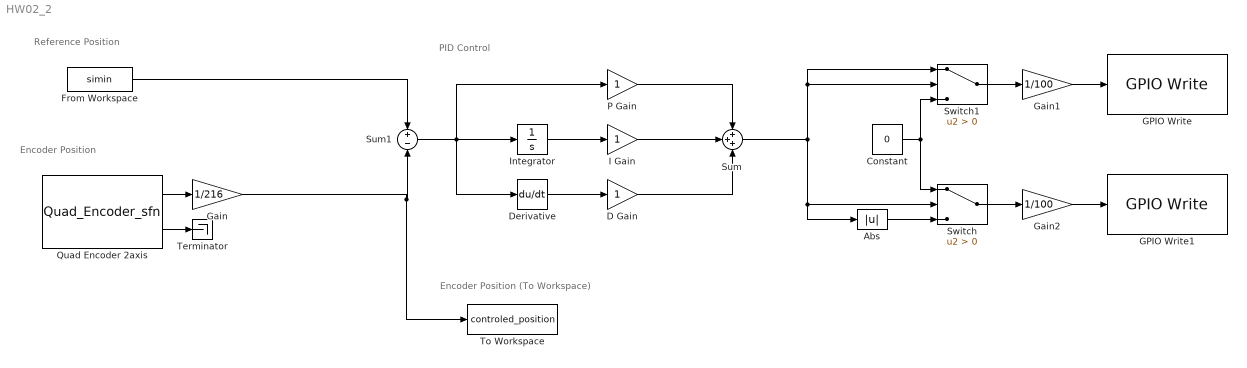
/*
 * HW02_2.c
 *
 * Academic License - for use in teaching, academic research, and meeting
 * course requirements at degree granting institutions only.  Not for
 * government, commercial, or other organizational use.
 *
 * Code generation for model "HW02_2".
 *
 * Model version              : 1.7
 * Simulink Coder version : 9.5 (R2021a) 14-Nov-2020
 * C source code generated on : Mon Dec  4 15:50:43 2023
 *
 * Target selection: ert.tlc
 * Note: GRT includes extra infrastructure and instrumentation for prototyping
 * Embedded hardware selection: ARM Compatible->ARM Cortex
 * Code generation objectives: Unspecified
 * Validation result: Not run
 */

#include "HW02_2.h"
#include "HW02_2_private.h"

/* Block signals (default storage) */
B_HW02_2_T HW02_2_B;

/* Continuous states */
X_HW02_2_T HW02_2_X;

/* Block states (default storage) */
DW_HW02_2_T HW02_2_DW;

/* Real-time model */
static RT_MODEL_HW02_2_T HW02_2_M_;
RT_MODEL_HW02_2_T *const HW02_2_M = &HW02_2_M_;

/*
 * This function updates continuous states using the ODE3 fixed-step
 * solver algorithm
 */
static void rt_ertODEUpdateContinuousStates(RTWSolverInfo *si )
{
  /* Solver Matrices */
  static const real_T rt_ODE3_A[3] = {
    1.0/2.0, 3.0/4.0, 1.0
  };

  static const real_T rt_ODE3_B[3][3] = {
    { 1.0/2.0, 0.0, 0.0 },

    { 0.0, 3.0/4.0, 0.0 },

    { 2.0/9.0, 1.0/3.0, 4.0/9.0 }
  };

  time_T t = rtsiGetT(si);
  time_T tnew = rtsiGetSolverStopTime(si);
  time_T h = rtsiGetStepSize(si);
  real_T *x = rtsiGetContStates(si);
  ODE3_IntgData *id = (ODE3_IntgData *)rtsiGetSolverData(si);
  real_T *y = id->y;
  real_T *f0 = id->f[0];
  real_T *f1 = id->f[1];
  real_T *f2 = id->f[2];
  real_T hB[3];
  int_T i;
  int_T nXc = 1;
  rtsiSetSimTimeStep(si,MINOR_TIME_STEP);

  /* Save the state values at time t in y, we'll use x as ynew. */
  (void) memcpy(y, x,
                (uint_T)nXc*sizeof(real_T));

  /* Assumes that rtsiSetT and ModelOutputs are up-to-date */
  /* f0 = f(t,y) */
  rtsiSetdX(si, f0);
  HW02_2_derivatives();

  /* f(:,2) = feval(odefile, t + hA(1), y + f*hB(:,1), args(:)(*)); */
  hB[0] = h * rt_ODE3_B[0][0];
  for (i = 0; i < nXc; i++) {
    x[i] = y[i] + (f0[i]*hB[0]);
  }

  rtsiSetT(si, t + h*rt_ODE3_A[0]);
  rtsiSetdX(si, f1);
  HW02_2_step();
  HW02_2_derivatives();

  /* f(:,3) = feval(odefile, t + hA(2), y + f*hB(:,2), args(:)(*)); */
  for (i = 0; i <= 1; i++) {
    hB[i] = h * rt_ODE3_B[1][i];
  }

  for (i = 0; i < nXc; i++) {
    x[i] = y[i] + (f0[i]*hB[0] + f1[i]*hB[1]);
  }

  rtsiSetT(si, t + h*rt_ODE3_A[1]);
  rtsiSetdX(si, f2);
  HW02_2_step();
  HW02_2_derivatives();

  /* tnew = t + hA(3);
     ynew = y + f*hB(:,3); */
  for (i = 0; i <= 2; i++) {
    hB[i] = h * rt_ODE3_B[2][i];
  }

  for (i = 0; i < nXc; i++) {
    x[i] = y[i] + (f0[i]*hB[0] + f1[i]*hB[1] + f2[i]*hB[2]);
  }

  rtsiSetT(si, tnew);
  rtsiSetSimTimeStep(si,MAJOR_TIME_STEP);
}

real_T rt_roundd_snf(real_T u)
{
  real_T y;
  if (fabs(u) < 4.503599627370496E+15) {
    if (u >= 0.5) {
      y = floor(u + 0.5);
    } else if (u > -0.5) {
      y = u * 0.0;
    } else {
      y = ceil(u - 0.5);
    }
  } else {
    y = u;
  }

  return y;
}

/* Model step function */
void HW02_2_step(void)
{
  /* local block i/o variables */
  real_T rtb_Switch;
  if (rtmIsMajorTimeStep(HW02_2_M)) {
    /* set solver stop time */
    if (!(HW02_2_M->Timing.clockTick0+1)) {
      rtsiSetSolverStopTime(&HW02_2_M->solverInfo,
                            ((HW02_2_M->Timing.clockTickH0 + 1) *
        HW02_2_M->Timing.stepSize0 * 4294967296.0));
    } else {
      rtsiSetSolverStopTime(&HW02_2_M->solverInfo, ((HW02_2_M->Timing.clockTick0
        + 1) * HW02_2_M->Timing.stepSize0 + HW02_2_M->Timing.clockTickH0 *
        HW02_2_M->Timing.stepSize0 * 4294967296.0));
    }
  }                                    /* end MajorTimeStep */

  /* Update absolute time of base rate at minor time step */
  if (rtmIsMinorTimeStep(HW02_2_M)) {
    HW02_2_M->Timing.t[0] = rtsiGetT(&HW02_2_M->solverInfo);
  }

  {
    real_T lastTime;
    real_T rtb_IGain;
    real_T tmp;
    real_T *lastU;
    uint8_T tmp_0;

    /* FromWorkspace: '<Root>/From Workspace' */
    {
      real_T *pDataValues = (real_T *) HW02_2_DW.FromWorkspace_PWORK.DataPtr;
      real_T *pTimeValues = (real_T *) HW02_2_DW.FromWorkspace_PWORK.TimePtr;
      int_T currTimeIndex = HW02_2_DW.FromWorkspace_IWORK.PrevIndex;
      real_T t = HW02_2_M->Timing.t[0];

      /* Get index */
      if (t <= pTimeValues[0]) {
        currTimeIndex = 0;
      } else if (t >= pTimeValues[10000]) {
        currTimeIndex = 9999;
      } else {
        if (t < pTimeValues[currTimeIndex]) {
          while (t < pTimeValues[currTimeIndex]) {
            currTimeIndex--;
          }
        } else {
          while (t >= pTimeValues[currTimeIndex + 1]) {
            currTimeIndex++;
          }
        }
      }

      HW02_2_DW.FromWorkspace_IWORK.PrevIndex = currTimeIndex;

      /* Post output */
      {
        real_T t1 = pTimeValues[currTimeIndex];
        real_T t2 = pTimeValues[currTimeIndex + 1];
        if (t1 == t2) {
          if (t < t1) {
            rtb_Switch = pDataValues[currTimeIndex];
          } else {
            rtb_Switch = pDataValues[currTimeIndex + 1];
          }
        } else {
          real_T f1 = (t2 - t) / (t2 - t1);
          real_T f2 = 1.0 - f1;
          real_T d1;
          real_T d2;
          int_T TimeIndex = currTimeIndex;
          d1 = pDataValues[TimeIndex];
          d2 = pDataValues[TimeIndex + 1];
          rtb_Switch = (real_T) rtInterpolate(d1, d2, f1, f2);
          pDataValues += 10001;
        }
      }
    }

    /* S-Function (Quad_Encoder_sfn): '<Root>/Quad Encoder 2axis' */
    Quad_Encoder_sfn_Outputs_wrapper(&HW02_2_B.QuadEncoder2axis_o1,
      &HW02_2_B.QuadEncoder2axis_o2, &HW02_2_DW.QuadEncoder2axis_DSTATE,
      &HW02_2_P.QuadEncoder2axis_P1, 1, &HW02_2_P.QuadEncoder2axis_P2, 1,
      &HW02_2_P.QuadEncoder2axis_P3, 1, &HW02_2_P.QuadEncoder2axis_P4, 1,
      &HW02_2_P.QuadEncoder2axis_P5, 1, &HW02_2_P.QuadEncoder2axis_P6, 1);

    /* Gain: '<Root>/Gain' */
    HW02_2_B.Gain = (int64_T)HW02_2_P.Gain_Gain * HW02_2_B.QuadEncoder2axis_o1;

    /* Sum: '<Root>/Sum1' incorporates:
     *  Gain: '<Root>/Gain'
     */
    HW02_2_B.Sum1 = rtb_Switch - (real_T)HW02_2_B.Gain * 3.637978807091713E-12;

    /* Switch: '<Root>/Switch' incorporates:
     *  Integrator: '<Root>/Integrator'
     */
    rtb_Switch = HW02_2_X.Integrator_CSTATE;

    /* Gain: '<Root>/I Gain' */
    rtb_IGain = HW02_2_P.IGain_Gain * rtb_Switch;

    /* Derivative: '<Root>/Derivative' */
    tmp = HW02_2_M->Timing.t[0];
    if ((HW02_2_DW.TimeStampA >= tmp) && (HW02_2_DW.TimeStampB >= tmp)) {
      /* Switch: '<Root>/Switch' */
      rtb_Switch = 0.0;
    } else {
      lastTime = HW02_2_DW.TimeStampA;
      lastU = &HW02_2_DW.LastUAtTimeA;
      if (HW02_2_DW.TimeStampA < HW02_2_DW.TimeStampB) {
        if (HW02_2_DW.TimeStampB < tmp) {
          lastTime = HW02_2_DW.TimeStampB;
          lastU = &HW02_2_DW.LastUAtTimeB;
        }
      } else if (HW02_2_DW.TimeStampA >= tmp) {
        lastTime = HW02_2_DW.TimeStampB;
        lastU = &HW02_2_DW.LastUAtTimeB;
      }

      /* Switch: '<Root>/Switch' */
      rtb_Switch = (HW02_2_B.Sum1 - *lastU) / (tmp - lastTime);
    }

    /* End of Derivative: '<Root>/Derivative' */

    /* Sum: '<Root>/Sum' incorporates:
     *  Gain: '<Root>/D Gain'
     *  Gain: '<Root>/P Gain'
     */
    rtb_IGain = (HW02_2_P.PGain_Gain * HW02_2_B.Sum1 + rtb_IGain) +
      HW02_2_P.DGain_Gain * rtb_Switch;

    /* Switch: '<Root>/Switch1' */
    if (rtb_IGain > HW02_2_P.Switch1_Threshold) {
      /* Switch: '<Root>/Switch' */
      rtb_Switch = rtb_IGain;
    } else {
      /* Switch: '<Root>/Switch' incorporates:
       *  Constant: '<Root>/Constant'
       */
      rtb_Switch = HW02_2_P.Constant_Value;
    }

    /* End of Switch: '<Root>/Switch1' */

    /* MATLABSystem: '<S1>/Digital Write' incorporates:
     *  Gain: '<Root>/Gain1'
     */
    tmp = rt_roundd_snf(HW02_2_P.Gain1_Gain * rtb_Switch);
    if (tmp < 256.0) {
      if (tmp >= 0.0) {
        tmp_0 = (uint8_T)tmp;
      } else {
        tmp_0 = 0U;
      }
    } else {
      tmp_0 = MAX_uint8_T;
    }

    EXT_GPIO_write(5U, tmp_0);

    /* End of MATLABSystem: '<S1>/Digital Write' */

    /* Switch: '<Root>/Switch' */
    if (rtb_IGain > HW02_2_P.Switch_Threshold) {
      /* Switch: '<Root>/Switch' incorporates:
       *  Constant: '<Root>/Constant'
       */
      rtb_Switch = HW02_2_P.Constant_Value;
    } else {
      /* Switch: '<Root>/Switch' incorporates:
       *  Abs: '<Root>/Abs'
       */
      rtb_Switch = fabs(rtb_IGain);
    }

    /* End of Switch: '<Root>/Switch' */

    /* MATLABSystem: '<S2>/Digital Write' incorporates:
     *  Gain: '<Root>/Gain2'
     */
    tmp = rt_roundd_snf(HW02_2_P.Gain2_Gain * rtb_Switch);
    if (tmp < 256.0) {
      if (tmp >= 0.0) {
        tmp_0 = (uint8_T)tmp;
      } else {
        tmp_0 = 0U;
      }
    } else {
      tmp_0 = MAX_uint8_T;
    }

    EXT_GPIO_write(6U, tmp_0);

    /* End of MATLABSystem: '<S2>/Digital Write' */
    if (rtmIsMajorTimeStep(HW02_2_M)) {
    }
  }

  if (rtmIsMajorTimeStep(HW02_2_M)) {
    real_T *lastU;

    /* Update for S-Function (Quad_Encoder_sfn): '<Root>/Quad Encoder 2axis' */

    /* S-Function "Quad_Encoder_sfn_wrapper" Block: <Root>/Quad Encoder 2axis */
    Quad_Encoder_sfn_Update_wrapper(&HW02_2_B.QuadEncoder2axis_o1,
      &HW02_2_B.QuadEncoder2axis_o2, &HW02_2_DW.QuadEncoder2axis_DSTATE,
      &HW02_2_P.QuadEncoder2axis_P1, 1, &HW02_2_P.QuadEncoder2axis_P2, 1,
      &HW02_2_P.QuadEncoder2axis_P3, 1, &HW02_2_P.QuadEncoder2axis_P4, 1,
      &HW02_2_P.QuadEncoder2axis_P5, 1, &HW02_2_P.QuadEncoder2axis_P6, 1);

    /* Update for Derivative: '<Root>/Derivative' */
    if (HW02_2_DW.TimeStampA == (rtInf)) {
      HW02_2_DW.TimeStampA = HW02_2_M->Timing.t[0];
      lastU = &HW02_2_DW.LastUAtTimeA;
    } else if (HW02_2_DW.TimeStampB == (rtInf)) {
      HW02_2_DW.TimeStampB = HW02_2_M->Timing.t[0];
      lastU = &HW02_2_DW.LastUAtTimeB;
    } else if (HW02_2_DW.TimeStampA < HW02_2_DW.TimeStampB) {
      HW02_2_DW.TimeStampA = HW02_2_M->Timing.t[0];
      lastU = &HW02_2_DW.LastUAtTimeA;
    } else {
      HW02_2_DW.TimeStampB = HW02_2_M->Timing.t[0];
      lastU = &HW02_2_DW.LastUAtTimeB;
    }

    *lastU = HW02_2_B.Sum1;

    /* End of Update for Derivative: '<Root>/Derivative' */

    /* External mode */
    rtExtModeUploadCheckTrigger(2);

    {                                  /* Sample time: [0.0s, 0.0s] */
      rtExtModeUpload(0, (real_T)HW02_2_M->Timing.t[0]);
    }

    if (rtmIsMajorTimeStep(HW02_2_M)) {/* Sample time: [0.001s, 0.0s] */
      rtExtModeUpload(1, (real_T)(((HW02_2_M->Timing.clockTick1+
        HW02_2_M->Timing.clockTickH1* 4294967296.0)) * 0.001));
    }
  }                                    /* end MajorTimeStep */

  if (rtmIsMajorTimeStep(HW02_2_M)) {
    /* signal main to stop simulation */
    {                                  /* Sample time: [0.0s, 0.0s] */
      if ((rtmGetTFinal(HW02_2_M)!=-1) &&
          !((rtmGetTFinal(HW02_2_M)-(((HW02_2_M->Timing.clockTick1+
               HW02_2_M->Timing.clockTickH1* 4294967296.0)) * 0.001)) >
            (((HW02_2_M->Timing.clockTick1+HW02_2_M->Timing.clockTickH1*
               4294967296.0)) * 0.001) * (DBL_EPSILON))) {
        rtmSetErrorStatus(HW02_2_M, "Simulation finished");
      }

      if (rtmGetStopRequested(HW02_2_M)) {
        rtmSetErrorStatus(HW02_2_M, "Simulation finished");
      }
    }

    rt_ertODEUpdateContinuousStates(&HW02_2_M->solverInfo);

    /* Update absolute time for base rate */
    /* The "clockTick0" counts the number of times the code of this task has
     * been executed. The absolute time is the multiplication of "clockTick0"
     * and "Timing.stepSize0". Size of "clockTick0" ensures timer will not
     * overflow during the application lifespan selected.
     * Timer of this task consists of two 32 bit unsigned integers.
     * The two integers represent the low bits Timing.clockTick0 and the high bits
     * Timing.clockTickH0. When the low bit overflows to 0, the high bits increment.
     */
    if (!(++HW02_2_M->Timing.clockTick0)) {
      ++HW02_2_M->Timing.clockTickH0;
    }

    HW02_2_M->Timing.t[0] = rtsiGetSolverStopTime(&HW02_2_M->solverInfo);

    {
      /* Update absolute timer for sample time: [0.001s, 0.0s] */
      /* The "clockTick1" counts the number of times the code of this task has
       * been executed. The resolution of this integer timer is 0.001, which is the step size
       * of the task. Size of "clockTick1" ensures timer will not overflow during the
       * application lifespan selected.
       * Timer of this task consists of two 32 bit unsigned integers.
       * The two integers represent the low bits Timing.clockTick1 and the high bits
       * Timing.clockTickH1. When the low bit overflows to 0, the high bits increment.
       */
      HW02_2_M->Timing.clockTick1++;
      if (!HW02_2_M->Timing.clockTick1) {
        HW02_2_M->Timing.clockTickH1++;
      }
    }
  }                                    /* end MajorTimeStep */
}
